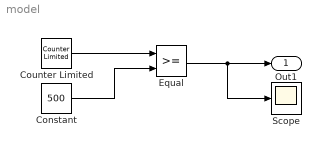
/*
 * File: model.c
 *
 * Code generated for Simulink model 'model'.
 *
 * Model version                  : 1.2
 * Simulink Coder version         : 9.8 (R2022b) 13-May-2022
 * C/C++ source code generated on : Tue Feb  7 20:32:49 2023
 *
 * Target selection: ert.tlc
 * Embedded hardware selection: ARM Compatible->ARM Cortex-M
 * Emulation hardware selection:
 *    Differs from embedded hardware (MATLAB Host)
 * Code generation objectives:
 *    1. RAM efficiency
 *    2. Execution efficiency
 * Validation result: Not run
 */

#include "model.h"
#include "rtwtypes.h"

/* Block signals and states (default storage) */
DW rtDW;

/* External outputs (root outports fed by signals with default storage) */
ExtY rtY;

/* Real-time model */
static RT_MODEL rtM_;
RT_MODEL *const rtM = &rtM_;

/* Model step function */
void model_step(void)
{
  /* Outport: '<Root>/Out1' incorporates:
   *  RelationalOperator: '<Root>/Equal'
   *  UnitDelay: '<S1>/Output'
   */
  rtY.Led = (rtDW.Output_DSTATE >= 500);

  /* Switch: '<S3>/FixPt Switch' incorporates:
   *  Constant: '<S2>/FixPt Constant'
   *  Constant: '<S3>/Constant'
   *  Sum: '<S2>/FixPt Sum1'
   *  UnitDelay: '<S1>/Output'
   */
  if ((uint16_T)(rtDW.Output_DSTATE + 1) > 1000) {
    rtDW.Output_DSTATE = 0U;
  } else {
    rtDW.Output_DSTATE++;
  }

  /* End of Switch: '<S3>/FixPt Switch' */
}
